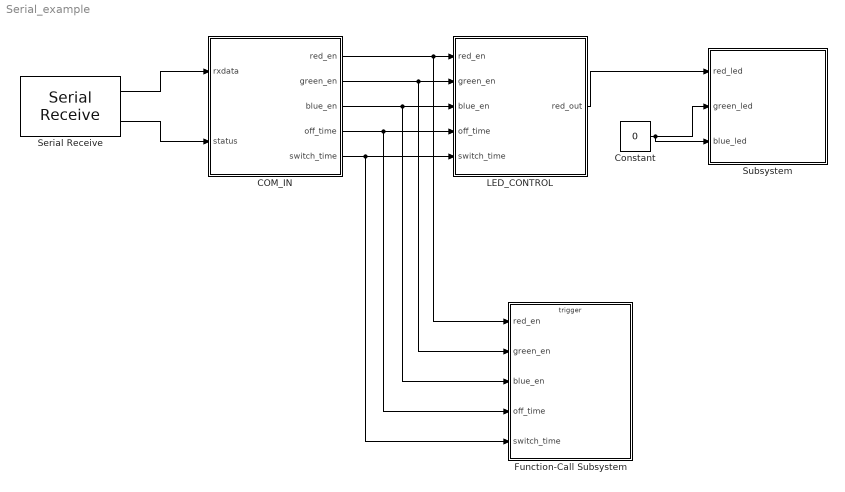
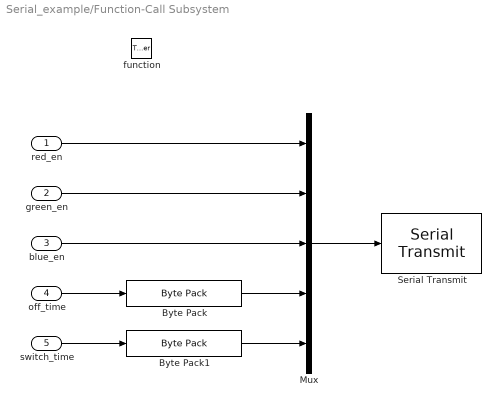
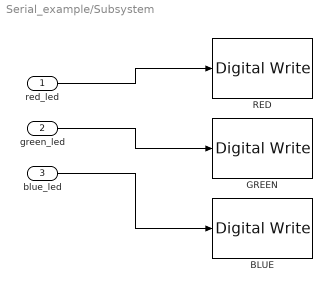
== stateflow chart Serial_example/LED_CONTROL ==
  state RED_OFF
    entry:
    red_out=false;
  state OFF
    entry:
    red_out=false;
  state RED_ON
    entry:
    red_out=true;
  RED_OFF -> (junction 14)
  (junction 14) -> RED_OFF [order 2] : [red_en==0]
  (default) -> OFF
  OFF -> (junction 14) : after(off_time,sec)
  (junction 14) -> RED_ON [order 1] : [red_en==1]
  RED_ON -> (junction 14)
  data: red_en input uint8; green_en input uint8; blue_en input uint8; off_time input single; red_out output boolean; switch_time input uint16

== stateflow chart Serial_example/COM_IN ==
  state SET_PARAM
    entry:
    red_en = rxdata(3);
    green_en =  rxdata(4);
    blue_en = rxdata(5);
    off_time = typecast(rxdata(6:9), 'sinlge');
    switch_time = typecast(rxdata(10:11), 'uint16');
  state INITIAL
    entry:
    red_en = 0;
    green_en = 0;
    blue_en = 0;
    off_time = 0.5;
    switch_time = 200;
  state STANDBY
  state ECHO_PARAM
    entry:
    send_params();
  SET_PARAM -> STANDBY
  (junction 15) -> SET_PARAM [order 1] : [rxdata(2)==hex2dec('55')]
  (default) -> INITIAL
  (junction 14) -> STANDBY [order 2]
  INITIAL -> STANDBY
  STANDBY -> (junction 14) : [status==0]
  (junction 14) -> (junction 15) [order 1] : [rxdata(1)==hex2dec('16')]
  (junction 15) -> ECHO_PARAM [order 2] : [rxdata(2)==hex2dec('22')]
  ECHO_PARAM -> STANDBY
  data: rxdata input uint8; status input uint8; red_en output uint8; green_en output uint8; blue_en output uint8; off_time output single; switch_time output uint16

/*
 * Academic License - for use in teaching, academic research, and meeting
 * course requirements at degree granting institutions only.  Not for
 * government, commercial, or other organizational use.
 *
 * File: Serial_example.c
 *
 * Code generated for Simulink model 'Serial_example'.
 *
 * Model version                  : 3.3
 * Simulink Coder version         : 9.7 (R2022a) 13-Nov-2021
 * C/C++ source code generated on : Fri Nov 25 12:05:17 2022
 *
 * Target selection: ert.tlc
 * Embedded hardware selection: ARM Compatible->ARM Cortex
 * Code generation objectives: Unspecified
 * Validation result: Not run
 */

#include "Serial_example.h"
#include "Serial_example_types.h"
#include "rtwtypes.h"
#include <string.h>
#include <stddef.h>
#include "send_params.h"
#include "send_params_private.h"

/* Named constants for Chart: '<Root>/COM_IN' */
#define Serial_example_IN_ECHO_PARAM   ((uint8_T)1U)
#define Serial_example_IN_INITIAL      ((uint8_T)2U)
#define Serial_example_IN_SET_PARAM    ((uint8_T)3U)
#define Serial_example_IN_STANDBY      ((uint8_T)4U)

/* Named constants for Chart: '<Root>/LED_CONTROL' */
#define Serial_example_IN_OFF          ((uint8_T)1U)
#define Serial_example_IN_RED_OFF      ((uint8_T)2U)
#define Serial_example_IN_RED_ON       ((uint8_T)3U)

/* Block signals (default storage) */
B_Serial_example_T Serial_example_B;

/* Block states (default storage) */
DW_Serial_example_T Serial_example_DW;

/* Real-time model */
static RT_MODEL_Serial_example_T Serial_example_M_;
RT_MODEL_Serial_example_T *const Serial_example_M = &Serial_example_M_;

/* Forward declaration for local functions */
static void Serial_examp_SystemCore_setup_n(freedomk64f_SCIRead_Serial_ex_T *obj);
static void Serial_examp_SystemCore_setup_n(freedomk64f_SCIRead_Serial_ex_T *obj)
{
  MW_SCI_Parity_Type ParityValue;
  MW_SCI_StopBits_Type StopBitsValue;
  uint32_T SCIModuleLoc;
  obj->isSetupComplete = false;
  obj->isInitialized = 1;
  Serial_example_B.TxPinLoc = MW_UNDEFINED_VALUE;
  SCIModuleLoc = 0;
  obj->MW_SCIHANDLE = MW_SCI_Open(&SCIModuleLoc, false, 10U,
    Serial_example_B.TxPinLoc);
  MW_SCI_SetBaudrate(obj->MW_SCIHANDLE, 115200U);
  StopBitsValue = MW_SCI_STOPBITS_1;
  ParityValue = MW_SCI_PARITY_NONE;
  MW_SCI_SetFrameFormat(obj->MW_SCIHANDLE, 8, ParityValue, StopBitsValue);
  obj->isSetupComplete = true;
}

/* Model step function */
void Serial_example_step(void)
{
  uint8_T RxData[11];
  uint8_T RxDataLocChar[11];
  uint8_T status;
  boolean_T rtb_red_out;

  /* MATLABSystem: '<Root>/Serial Receive' */
  if (Serial_example_DW.obj.SampleTime !=
      Serial_example_P.SerialReceive_SampleTime) {
    Serial_example_DW.obj.SampleTime = Serial_example_P.SerialReceive_SampleTime;
  }

  status = MW_SCI_Receive(Serial_example_DW.obj.MW_SCIHANDLE, &RxDataLocChar[0],
    11U);
  memcpy((void *)&RxData[0], (void *)&RxDataLocChar[0], (uint32_T)((size_t)11 *
          sizeof(uint8_T)));

  /* Chart: '<Root>/COM_IN' incorporates:
   *  MATLABSystem: '<Root>/Serial Receive'
   */
  if (Serial_example_DW.is_active_c3_Serial_example == 0U) {
    Serial_example_DW.is_active_c3_Serial_example = 1U;
    Serial_example_DW.is_c3_Serial_example = Serial_example_IN_INITIAL;
    Serial_example_B.red_en = 0U;
    Serial_example_B.green_en = 0U;
    Serial_example_B.blue_en = 0U;
    Serial_example_B.off_time_m = 0.5F;
    Serial_example_B.switch_time_p = 200U;
  } else {
    switch (Serial_example_DW.is_c3_Serial_example) {
     case Serial_example_IN_ECHO_PARAM:
      Serial_example_DW.is_c3_Serial_example = Serial_example_IN_STANDBY;
      break;

     case Serial_example_IN_INITIAL:
      Serial_example_DW.is_c3_Serial_example = Serial_example_IN_STANDBY;
      break;

     case Serial_example_IN_SET_PARAM:
      Serial_example_DW.is_c3_Serial_example = Serial_example_IN_STANDBY;
      break;

     default:
      /* case IN_STANDBY: */
      if (status == 0) {
        if (RxData[0] == 22) {
          switch (RxData[1]) {
           case 85:
            Serial_example_DW.is_c3_Serial_example = Serial_example_IN_SET_PARAM;
            Serial_example_B.red_en = RxData[2];
            Serial_example_B.green_en = RxData[3];
            Serial_example_B.blue_en = RxData[4];
            memcpy((void *)&Serial_example_B.off_time_m, (void *)&RxData[5],
                   (uint32_T)((size_t)1 * sizeof(real32_T)));
            memcpy((void *)&Serial_example_B.switch_time_p, (void *)&RxData[9],
                   (uint32_T)((size_t)1 * sizeof(uint16_T)));
            break;

           case 34:
            Serial_example_DW.is_c3_Serial_example =
              Serial_example_IN_ECHO_PARAM;
            send_params();
            break;

           default:
            Serial_example_DW.is_c3_Serial_example = Serial_example_IN_STANDBY;
            break;
          }
        } else {
          Serial_example_DW.is_c3_Serial_example = Serial_example_IN_STANDBY;
        }
      }
      break;
    }
  }

  /* End of Chart: '<Root>/COM_IN' */

  /* Chart: '<Root>/LED_CONTROL' */
  if (Serial_example_DW.is_active_c1_Serial_example == 0U) {
    Serial_example_DW.is_active_c1_Serial_example = 1U;
    Serial_example_DW.is_c1_Serial_example = Serial_example_IN_OFF;
    rtb_red_out = false;
  } else {
    switch (Serial_example_DW.is_c1_Serial_example) {
     case Serial_example_IN_OFF:
      rtb_red_out = false;
      switch (Serial_example_B.red_en) {
       case 1:
        Serial_example_DW.is_c1_Serial_example = Serial_example_IN_RED_ON;
        rtb_red_out = true;
        break;

       case 0:
        Serial_example_DW.is_c1_Serial_example = Serial_example_IN_RED_OFF;
        break;
      }
      break;

     case Serial_example_IN_RED_OFF:
      rtb_red_out = false;
      switch (Serial_example_B.red_en) {
       case 1:
        Serial_example_DW.is_c1_Serial_example = Serial_example_IN_RED_ON;
        rtb_red_out = true;
        break;

       case 0:
        Serial_example_DW.is_c1_Serial_example = Serial_example_IN_RED_OFF;
        break;
      }
      break;

     default:
      /* case IN_RED_ON: */
      rtb_red_out = true;
      switch (Serial_example_B.red_en) {
       case 1:
        Serial_example_DW.is_c1_Serial_example = Serial_example_IN_RED_ON;
        break;

       case 0:
        Serial_example_DW.is_c1_Serial_example = Serial_example_IN_RED_OFF;
        rtb_red_out = false;
        break;
      }
      break;
    }
  }

  /* End of Chart: '<Root>/LED_CONTROL' */

  /* MATLABSystem: '<S4>/RED' */
  MW_digitalIO_write(Serial_example_DW.obj_j.MW_DIGITALIO_HANDLE, rtb_red_out);

  /* MATLABSystem: '<S4>/GREEN' incorporates:
   *  Constant: '<Root>/Constant'
   */
  MW_digitalIO_write(Serial_example_DW.obj_l.MW_DIGITALIO_HANDLE,
                     Serial_example_P.Constant_Value != 0.0);

  /* MATLABSystem: '<S4>/BLUE' incorporates:
   *  Constant: '<Root>/Constant'
   */
  MW_digitalIO_write(Serial_example_DW.obj_b.MW_DIGITALIO_HANDLE,
                     Serial_example_P.Constant_Value != 0.0);
}
